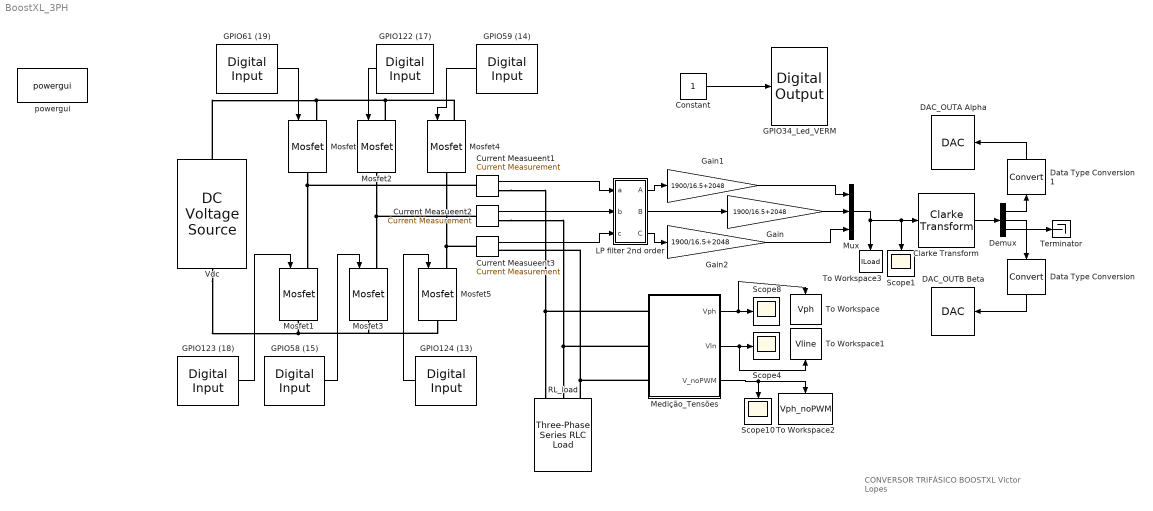
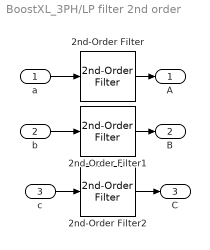
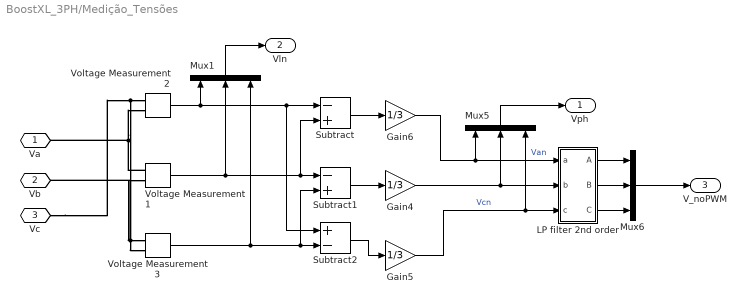
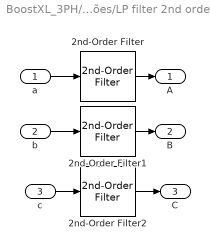
/*
 * File: BoostXL_3PH.c
 *
 * Code generated for Simulink model 'BoostXL_3PH'.
 *
 * Model version                  : 1.14
 * Simulink Coder version         : 8.14 (R2018a) 06-Feb-2018
 * C/C++ source code generated on : Mon Mar 29 09:06:23 2021
 *
 * Target selection: ert.tlc
 * Embedded hardware selection: Texas Instruments->C2000
 * Code generation objectives: Unspecified
 * Validation result: Not run
 */

#include "BoostXL_3PH.h"
#include "BoostXL_3PH_private.h"
#include "BoostXL_3PH_dt.h"

/* Block signals (default storage) */
B_BoostXL_3PH_T BoostXL_3PH_B;

/* Continuous states */
X_BoostXL_3PH_T BoostXL_3PH_X;

/* Block states (default storage) */
DW_BoostXL_3PH_T BoostXL_3PH_DW;

/* Real-time model */
RT_MODEL_BoostXL_3PH_T BoostXL_3PH_M_;
RT_MODEL_BoostXL_3PH_T *const BoostXL_3PH_M = &BoostXL_3PH_M_;
static void rate_monotonic_scheduler(void);

/*
 * Set which subrates need to run this base step (base rate always runs).
 * This function must be called prior to calling the model step function
 * in order to "remember" which rates need to run this base step.  The
 * buffering of events allows for overlapping preemption.
 */
void BoostXL_3PH_SetEventsForThisBaseStep(boolean_T *eventFlags)
{
  /* Task runs when its counter is zero, computed via rtmStepTask macro */
  eventFlags[2] = ((boolean_T)rtmStepTask(BoostXL_3PH_M, 2));
}

/*
 *   This function updates active task flag for each subrate
 * and rate transition flags for tasks that exchange data.
 * The function assumes rate-monotonic multitasking scheduler.
 * The function must be called at model base rate so that
 * the generated code self-manages all its subrates and rate
 * transition flags.
 */
static void rate_monotonic_scheduler(void)
{
  /* Compute which subrates run during the next base time step.  Subrates
   * are an integer multiple of the base rate counter.  Therefore, the subtask
   * counter is reset when it reaches its limit (zero means run).
   */
  (BoostXL_3PH_M->Timing.TaskCounters.TID[2])++;
  if ((BoostXL_3PH_M->Timing.TaskCounters.TID[2]) > 99999) {/* Sample time: [0.5s, 0.0s] */
    BoostXL_3PH_M->Timing.TaskCounters.TID[2] = 0;
  }
}

/* This function updates continuous states using the ODE8 fixed-step
 * solver algorithm
 */
static void rt_ertODEUpdateContinuousStates(RTWSolverInfo *si )
{
  /* Solver Matrices */
#define BoostXL_3PH_NSTAGES            13

  static real_T rt_ODE8_B[13] = {
    4.174749114153025E-2, 0.0, 0.0, 0.0,
    0.0, -5.54523286112393E-2, 2.393128072011801E-1, 7.03510669403443E-1,
    -7.597596138144609E-1, 6.605630309222863E-1, 1.581874825101233E-1,
    -2.381095387528628E-1, 2.5E-1
  };

  static real_T rt_ODE8_C[13] = {
    0.0, 5.555555555555556E-2, 8.333333333333333E-2, 1.25E-1,
    3.125E-1, 3.75E-1, 1.475E-1, 4.65E-1,
    5.648654513822596E-1, 6.5E-1, 9.246562776405044E-1, 1.0, 1.0
  };

  static real_T rt_ODE8_A[13][13] = {
    /* rt_ODE8_A[0][] */
    { 0.0, 0.0, 0.0, 0.0,
      0.0, 0.0, 0.0, 0.0,
      0.0, 0.0, 0.0, 0.0, 0.0 },

    /* rt_ODE8_A[1][] */
    { 5.555555555555556E-2, 0.0, 0.0, 0.0,
      0.0, 0.0, 0.0, 0.0,
      0.0, 0.0, 0.0, 0.0, 0.0 },

    /* rt_ODE8_A[2][] */
    { 2.083333333333333E-2, 6.25E-2, 0.0, 0.0,
      0.0, 0.0, 0.0, 0.0,
      0.0, 0.0, 0.0, 0.0, 0.0 },

    /* rt_ODE8_A[3][] */
    { 3.125E-2, 0.0, 9.375E-2, 0.0,
      0.0, 0.0, 0.0, 0.0,
      0.0, 0.0, 0.0, 0.0, 0.0 },

    /* rt_ODE8_A[4][] */
    { 3.125E-1, 0.0, -1.171875, 1.171875,
      0.0, 0.0, 0.0, 0.0,
      0.0, 0.0, 0.0, 0.0, 0.0 },

    /* rt_ODE8_A[5][] */
    { 3.75E-2, 0.0, 0.0, 1.875E-1,
      1.5E-1, 0.0, 0.0, 0.0,
      0.0, 0.0, 0.0, 0.0, 0.0 },

    /* rt_ODE8_A[6][] */
    { 4.791013711111111E-2, 0.0, 0.0, 1.122487127777778E-1,
      -2.550567377777778E-2, 1.284682388888889E-2, 0.0, 0.0,
      0.0, 0.0, 0.0, 0.0, 0.0 },

    /* rt_ODE8_A[7][] */
    { 1.691798978729228E-2, 0.0, 0.0, 3.878482784860432E-1,
      3.597736985150033E-2, 1.969702142156661E-1, -1.727138523405018E-1, 0.0,
      0.0, 0.0, 0.0, 0.0, 0.0 },

    /* rt_ODE8_A[8][] */
    { 6.90957533591923E-2, 0.0, 0.0, -6.342479767288542E-1,
      -1.611975752246041E-1, 1.386503094588253E-1, 9.409286140357563E-1,
      2.11636326481944E-1,
      0.0, 0.0, 0.0, 0.0, 0.0 },

    /* rt_ODE8_A[9][] */
    { 1.835569968390454E-1, 0.0, 0.0, -2.468768084315592,
      -2.912868878163005E-1, -2.647302023311738E-2, 2.8478387641928,
      2.813873314698498E-1,
      1.237448998633147E-1, 0.0, 0.0, 0.0, 0.0 },

    /* rt_ODE8_A[10][] */
    { -1.215424817395888, 0.0, 0.0, 1.667260866594577E1,
      9.157418284168179E-1, -6.056605804357471, -1.600357359415618E1,
      1.484930308629766E1,
      -1.337157573528985E1, 5.134182648179638, 0.0, 0.0, 0.0 },

    /* rt_ODE8_A[11][] */
    { 2.588609164382643E-1, 0.0, 0.0, -4.774485785489205,
      -4.350930137770325E-1, -3.049483332072241, 5.577920039936099,
      6.155831589861039,
      -5.062104586736938, 2.193926173180679, 1.346279986593349E-1, 0.0, 0.0 },

    /* rt_ODE8_A[12][] */
    { 8.224275996265075E-1, 0.0, 0.0, -1.165867325727766E1,
      -7.576221166909362E-1, 7.139735881595818E-1, 1.207577498689006E1,
      -2.127659113920403,
      1.990166207048956, -2.342864715440405E-1, 1.758985777079423E-1, 0.0, 0.0 },
  };

  time_T t = rtsiGetT(si);
  time_T tnew = rtsiGetSolverStopTime(si);
  time_T h = rtsiGetStepSize(si);
  real_T *x = rtsiGetContStates(si);
  ODE8_IntgData *intgData = (ODE8_IntgData *) rtsiGetSolverData(si);
  real_T *deltaY = intgData->deltaY;
  real_T *x0 = intgData->x0;
  real_T* f[BoostXL_3PH_NSTAGES];
  int idx,stagesIdx,statesIdx;
  double deltaX;
  int_T nXc = 12;
  rtsiSetSimTimeStep(si,MINOR_TIME_STEP);
  f[0] = intgData->f[0];
  f[1] = intgData->f[1];
  f[2] = intgData->f[2];
  f[3] = intgData->f[3];
  f[4] = intgData->f[4];
  f[5] = intgData->f[5];
  f[6] = intgData->f[6];
  f[7] = intgData->f[7];
  f[8] = intgData->f[8];
  f[9] = intgData->f[9];
  f[10] = intgData->f[10];
  f[11] = intgData->f[11];
  f[12] = intgData->f[12];

  /* Save the state values at time t in y and x0*/
  (void) memset(deltaY, 0,
                (uint_T)nXc*sizeof(real_T));
  (void) memcpy(x0, x,
                nXc*sizeof(real_T));
  for (stagesIdx=0;stagesIdx<BoostXL_3PH_NSTAGES;stagesIdx++) {
    (void) memcpy(x, x0,
                  (uint_T)nXc*sizeof(real_T));
    for (statesIdx=0;statesIdx<nXc;statesIdx++) {
      deltaX = 0;
      for (idx=0;idx<stagesIdx;idx++) {
        deltaX = deltaX + h*rt_ODE8_A[stagesIdx][idx]*f[idx][statesIdx];
      }

      x[statesIdx] = x0[statesIdx] + deltaX;
    }

    if (stagesIdx==0) {
      rtsiSetdX(si, f[stagesIdx]);
      BoostXL_3PH_derivatives();
    } else {
      (stagesIdx==BoostXL_3PH_NSTAGES-1)? rtsiSetT(si, tnew) : rtsiSetT(si, t +
        h*rt_ODE8_C[stagesIdx]);
      rtsiSetdX(si, f[stagesIdx]);
      BoostXL_3PH_step0();
      BoostXL_3PH_derivatives();
    }

    for (statesIdx=0;statesIdx<nXc;statesIdx++) {
      deltaY[statesIdx] = deltaY[statesIdx] + h*rt_ODE8_B[stagesIdx]*f[stagesIdx]
        [statesIdx];
    }
  }

  for (statesIdx=0;statesIdx<nXc;statesIdx++) {
    x[statesIdx] = x0[statesIdx] + deltaY[statesIdx];
  }

  rtsiSetSimTimeStep(si,MAJOR_TIME_STEP);
}

real32_T rt_roundf_snf(real32_T u)
{
  real32_T y;
  if (fabsf(u) < 8.388608E+6F) {
    if (u >= 0.5F) {
      y = (real32_T)floor(u + 0.5F);
    } else if (u > -0.5F) {
      y = u * 0.0F;
    } else {
      y = (real32_T)ceil(u - 0.5F);
    }
  } else {
    y = u;
  }

  return y;
}

/* Model step function for TID0 */
void BoostXL_3PH_step0(void)           /* Sample time: [0.0s, 0.0s] */
{
  real32_T tmp;
  uint16_T tmp_0;
  if (rtmIsMajorTimeStep(BoostXL_3PH_M)) {
    /* set solver stop time */
    if (!(BoostXL_3PH_M->Timing.clockTick0+1)) {
      rtsiSetSolverStopTime(&BoostXL_3PH_M->solverInfo,
                            ((BoostXL_3PH_M->Timing.clockTickH0 + 1) *
        BoostXL_3PH_M->Timing.stepSize0 * 4294967296.0));
    } else {
      rtsiSetSolverStopTime(&BoostXL_3PH_M->solverInfo,
                            ((BoostXL_3PH_M->Timing.clockTick0 + 1) *
        BoostXL_3PH_M->Timing.stepSize0 + BoostXL_3PH_M->Timing.clockTickH0 *
        BoostXL_3PH_M->Timing.stepSize0 * 4294967296.0));
    }

    {                                  /* Sample time: [0.0s, 0.0s] */
      rate_monotonic_scheduler();
    }
  }                                    /* end MajorTimeStep */

  /* Update absolute time of base rate at minor time step */
  if (rtmIsMinorTimeStep(BoostXL_3PH_M)) {
    BoostXL_3PH_M->Timing.t[0] = rtsiGetT(&BoostXL_3PH_M->solverInfo);
  }

  if (rtmIsMajorTimeStep(BoostXL_3PH_M)) {
    /* S-Function (sfun_spssw_discc): '<S74>/State-Space' incorporates:
     *  Constant: '<S73>/DC'
     *  Constant: '<S76>/SwitchCurrents'
     */

    /* S-Function block: <S74>/State-Space */
    {
      real_T accum;

      /* Circuit has switches */
      int_T *switch_status = (int_T*)
        BoostXL_3PH_DW.StateSpace_PWORK.SWITCH_STATUS;
      int_T *switch_status_init = (int_T*)
        BoostXL_3PH_DW.StateSpace_PWORK.SWITCH_STATUS_INIT;
      int_T *SwitchChange = (int_T*) BoostXL_3PH_DW.StateSpace_PWORK.SW_CHG;
      int_T *gState = (int_T*) BoostXL_3PH_DW.StateSpace_PWORK.G_STATE;
      real_T *yswitch = (real_T*)BoostXL_3PH_DW.StateSpace_PWORK.Y_SWITCH;
      int_T *switchTypes = (int_T*) BoostXL_3PH_DW.StateSpace_PWORK.SWITCH_TYPES;
      int_T *idxOutSw = (int_T*) BoostXL_3PH_DW.StateSpace_PWORK.IDX_OUT_SW;
      real_T *DxCol = (real_T*)BoostXL_3PH_DW.StateSpace_PWORK.DX_COL;
      real_T *tmp2 = (real_T*)BoostXL_3PH_DW.StateSpace_PWORK.TMP2;
      real_T *BDcol = (real_T*)BoostXL_3PH_DW.StateSpace_PWORK.BD_COL;
      real_T *tmp1 = (real_T*)BoostXL_3PH_DW.StateSpace_PWORK.TMP1;
      real_T *uswlast = (real_T*)BoostXL_3PH_DW.StateSpace_PWORK.USWLAST;
      int_T newState;
      int_T swChanged = 0;
      int loopsToDo = 20;
      real_T temp;

      /* keep an initial copy of switch_status*/
      memcpy(switch_status_init, switch_status, 12 * sizeof(int_T));
      memcpy(uswlast, &BoostXL_3PH_B.StateSpace_o1[0], 12*sizeof(real_T));
      do {
        if (loopsToDo == 1) {          /* Need to reset some variables: */
          swChanged = 0;

          /* return to the original switch status*/
          {
            int_T i1;
            for (i1=0; i1 < 12; i1++) {
              swChanged = ((SwitchChange[i1] = switch_status_init[i1] -
                            switch_status[i1]) != 0) ? 1 : swChanged;
              switch_status[i1] = switch_status_init[i1];
            }
          }
        } else {
          /*
           * Compute outputs:
           * ---------------
           */
          real_T *Cs = (real_T*)BoostXL_3PH_DW.StateSpace_PWORK.CS;
          real_T *Ds = (real_T*)BoostXL_3PH_DW.StateSpace_PWORK.DS;

          {
            int_T i1;
            real_T *y0 = &BoostXL_3PH_B.StateSpace_o1[0];
            for (i1=0; i1 < 18; i1++) {
              accum = 0.0;
              accum += *(Cs++) * BoostXL_3PH_DW.StateSpace_DSTATE[0];
              accum += *(Cs++) * BoostXL_3PH_DW.StateSpace_DSTATE[1];
              accum += *(Cs++) * BoostXL_3PH_DW.StateSpace_DSTATE[2];

              {
                int_T i2;
                const real_T *u0 = &BoostXL_3PH_P.SwitchCurrents_Value[0];
                for (i2=0; i2 < 12; i2++) {
                  accum += *(Ds++) * u0[i2];
                }

                accum += *(Ds++) * BoostXL_3PH_P.Vdc_Amplitude;
              }

              y0[i1] = accum;
            }
          }

          swChanged = 0;

          {
            int_T i1;
            real_T *y0 = &BoostXL_3PH_B.StateSpace_o1[0];
            for (i1=0; i1 < 12; i1++) {
              switch (switchTypes[i1]) {
               case 1 :                /* Ideal switch */
                newState = gState[i1] > 0 ? 1 : 0;
                break;

               case 3 :                /* Diodes */
                newState = y0[i1] > 0.0 ? 1 : ((y0[i1] < 0.0) ? 0 :
                  switch_status[i1]);
                break;
              }

              swChanged = ((SwitchChange[i1] = newState - switch_status[i1]) !=
                           0) ? 1 : swChanged;
              switch_status[i1] = newState;/* Keep new state */
            }
          }
        }

        /*
         * Compute new As, Bs, Cs and Ds matrixes:
         * --------------------------------------
         */
        if (swChanged) {
          real_T *As = (real_T*)BoostXL_3PH_DW.StateSpace_PWORK.AS;
          real_T *Cs = (real_T*)BoostXL_3PH_DW.StateSpace_PWORK.CS;
          real_T *Bs = (real_T*)BoostXL_3PH_DW.StateSpace_PWORK.BS;
          real_T *Ds = (real_T*)BoostXL_3PH_DW.StateSpace_PWORK.DS;
          real_T a1;

          {
            int_T i1;
            for (i1=0; i1 < 12; i1++) {
              if (SwitchChange[i1] != 0) {
                a1 = yswitch[i1]*SwitchChange[i1];
                temp = 1/(1-Ds[i1*14]*a1);

                {
                  int_T i2;
                  for (i2=0; i2 < 18; i2++) {
                    DxCol[i2]= Ds[i2 * 13 + i1]*temp*a1;
                  }
                }

                DxCol[i1] = temp;
                BDcol[0]= Bs[0 + i1]*a1;
                BDcol[1]= Bs[13 + i1]*a1;
                BDcol[2]= Bs[26 + i1]*a1;

                /* Copy row nSw of Cs into tmp1 and zero it out in Cs */
                memcpy(tmp1, &Cs[i1 * 3], 3 * sizeof(real_T));
                memset(&Cs[i1 * 3], '\0', 3 * sizeof(real_T));

                /* Copy row nSw of Ds into tmp2 and zero it out in Ds */
                memcpy(tmp2, &Ds[i1 * 13], 13 * sizeof(real_T));
                memset(&Ds[i1 * 13], '\0', 13 * sizeof(real_T));

                /* Cs = Cs + DxCol * tmp1, Ds = Ds + DxCol * tmp2 *******************/
                {
                  int_T i2;
                  for (i2=0; i2 < 18; i2++) {
                    a1 = DxCol[i2];
                    Cs[i2 * 3 + 0] += a1 * tmp1[0];
                    Cs[i2 * 3 + 1] += a1 * tmp1[1];
                    Cs[i2 * 3 + 2] += a1 * tmp1[2];

                    {
                      int_T i3;
                      for (i3=0; i3 < 13; i3++) {
                        Ds[i2 * 13 + i3] += a1 * tmp2[i3];
                      }
                    }
                  }
                }

                /* As = As + BdCol*Cs(nSw,:), Bs = Bs + BdCol*Ds(nSw,:) *************/
                a1 = BDcol[0];
                As[0 + 0] += a1 * Cs[i1 * 3 + 0];
                As[0 + 1] += a1 * Cs[i1 * 3 + 1];
                As[0 + 2] += a1 * Cs[i1 * 3 + 2];

                {
                  int_T i2;
                  for (i2=0; i2 < 13; i2++) {
                    Bs[0 + i2] += a1 * Ds[i1 * 13 + i2];
                  }
                }

                a1 = BDcol[1];
                As[3 + 0] += a1 * Cs[i1 * 3 + 0];
                As[3 + 1] += a1 * Cs[i1 * 3 + 1];
                As[3 + 2] += a1 * Cs[i1 * 3 + 2];

                {
                  int_T i2;
                  for (i2=0; i2 < 13; i2++) {
                    Bs[13 + i2] += a1 * Ds[i1 * 13 + i2];
                  }
                }

                a1 = BDcol[2];
                As[6 + 0] += a1 * Cs[i1 * 3 + 0];
                As[6 + 1] += a1 * Cs[i1 * 3 + 1];
                As[6 + 2] += a1 * Cs[i1 * 3 + 2];

                {
                  int_T i2;
                  for (i2=0; i2 < 13; i2++) {
                    Bs[26 + i2] += a1 * Ds[i1 * 13 + i2];
                  }
                }
              }
            }
          }
        }                              /* if (swChanged) */
      } while (swChanged > 0 && --loopsToDo > 0);

      if (loopsToDo == 0) {
        real_T *Cs = (real_T*)BoostXL_3PH_DW.StateSpace_PWORK.CS;
        real_T *Ds = (real_T*)BoostXL_3PH_DW.StateSpace_PWORK.DS;

        {
          int_T i1;
          real_T *y0 = &BoostXL_3PH_B.StateSpace_o1[0];
          for (i1=0; i1 < 18; i1++) {
            accum = 0.0;
            accum += *(Cs++) * BoostXL_3PH_DW.StateSpace_DSTATE[0];
            accum += *(Cs++) * BoostXL_3PH_DW.StateSpace_DSTATE[1];
            accum += *(Cs++) * BoostXL_3PH_DW.StateSpace_DSTATE[2];

            {
              int_T i2;
              const real_T *u0 = &BoostXL_3PH_P.SwitchCurrents_Value[0];
              for (i2=0; i2 < 12; i2++) {
                accum += *(Ds++) * u0[i2];
              }

              accum += *(Ds++) * BoostXL_3PH_P.Vdc_Amplitude;
            }

            y0[i1] = accum;
          }
        }
      }

      /* Output new switches states */
      {
        int_T i1;
        real_T *y1 = &BoostXL_3PH_B.StateSpace_o2[0];
        for (i1=0; i1 < 12; i1++) {
          y1[i1] = (real_T)switch_status[i1];
        }
      }
    }

    /* Gain: '<S2>/do not delete this gain' */
    BoostXL_3PH_B.donotdeletethisgain = BoostXL_3PH_P.donotdeletethisgain_Gain *
      BoostXL_3PH_B.StateSpace_o1[15];

    /* Gain: '<S3>/do not delete this gain' */
    BoostXL_3PH_B.donotdeletethisgain_n =
      BoostXL_3PH_P.donotdeletethisgain_Gain_d * BoostXL_3PH_B.StateSpace_o1[16];

    /* Gain: '<S4>/do not delete this gain' */
    BoostXL_3PH_B.donotdeletethisgain_d =
      BoostXL_3PH_P.donotdeletethisgain_Gain_c * BoostXL_3PH_B.StateSpace_o1[17];

    /* S-Function (c280xgpio_di): '<Root>/GPIO122 (17)' */
    {
      BoostXL_3PH_B.GPIO12217 = GpioDataRegs.GPDDAT.bit.GPIO122;
    }

    /* DataTypeConversion: '<S50>/Data Type Conversion' */
    BoostXL_3PH_B.DataTypeConversion = BoostXL_3PH_B.GPIO12217;

    /* S-Function (c280xgpio_di): '<Root>/GPIO123 (18)' */
    {
      BoostXL_3PH_B.GPIO12318 = GpioDataRegs.GPDDAT.bit.GPIO123;
    }

    /* DataTypeConversion: '<S43>/Data Type Conversion' */
    BoostXL_3PH_B.DataTypeConversion_p = BoostXL_3PH_B.GPIO12318;

    /* S-Function (c280xgpio_di): '<Root>/GPIO124 (13)' */
    {
      BoostXL_3PH_B.GPIO12413 = GpioDataRegs.GPDDAT.bit.GPIO124;
    }

    /* DataTypeConversion: '<S71>/Data Type Conversion' */
    BoostXL_3PH_B.DataTypeConversion_pp = BoostXL_3PH_B.GPIO12413;

    /* S-Function (c280xgpio_di): '<Root>/GPIO58 (15)' */
    {
      BoostXL_3PH_B.GPIO5815 = GpioDataRegs.GPBDAT.bit.GPIO58;
    }

    /* DataTypeConversion: '<S57>/Data Type Conversion' */
    BoostXL_3PH_B.DataTypeConversion_b = BoostXL_3PH_B.GPIO5815;

    /* S-Function (c280xgpio_di): '<Root>/GPIO59 (14)' */
    {
      BoostXL_3PH_B.GPIO5914 = GpioDataRegs.GPBDAT.bit.GPIO59;
    }

    /* DataTypeConversion: '<S64>/Data Type Conversion' */
    BoostXL_3PH_B.DataTypeConversion_i = BoostXL_3PH_B.GPIO5914;

    /* S-Function (c280xgpio_di): '<Root>/GPIO61 (19)' */
    {
      BoostXL_3PH_B.GPIO6119 = GpioDataRegs.GPBDAT.bit.GPIO61;
    }

    /* DataTypeConversion: '<S36>/Data Type Conversion' */
    BoostXL_3PH_B.DataTypeConversion_k = BoostXL_3PH_B.GPIO6119;

    /* Gain: '<S23>/do not delete this gain' */
    BoostXL_3PH_B.donotdeletethisgain_c =
      BoostXL_3PH_P.donotdeletethisgain_Gain_a * BoostXL_3PH_B.StateSpace_o1[13];

    /* Gain: '<S22>/do not delete this gain' */
    BoostXL_3PH_B.donotdeletethisgain_g =
      BoostXL_3PH_P.donotdeletethisgain_Gain_h * BoostXL_3PH_B.StateSpace_o1[12];

    /* Gain: '<S24>/do not delete this gain' */
    BoostXL_3PH_B.donotdeletethisgain_p =
      BoostXL_3PH_P.donotdeletethisgain_Gain_df * BoostXL_3PH_B.StateSpace_o1[14];

    /* Gain: '<S6>/Gain4' incorporates:
     *  Sum: '<S6>/Subtract1'
     */
    BoostXL_3PH_B.Gain4 = (BoostXL_3PH_B.donotdeletethisgain_p -
      BoostXL_3PH_B.donotdeletethisgain_g) * BoostXL_3PH_P.Gain4_Gain;

    /* Gain: '<S6>/Gain6' incorporates:
     *  Sum: '<S6>/Subtract'
     */
    BoostXL_3PH_B.Van = (BoostXL_3PH_B.donotdeletethisgain_g -
                         BoostXL_3PH_B.donotdeletethisgain_c) *
      BoostXL_3PH_P.Gain6_Gain;

    /* Gain: '<S6>/Gain5' incorporates:
     *  Sum: '<S6>/Subtract2'
     */
    BoostXL_3PH_B.Vcn = (BoostXL_3PH_B.donotdeletethisgain_c -
                         BoostXL_3PH_B.donotdeletethisgain_p) *
      BoostXL_3PH_P.Gain5_Gain;
  }

  /* Gain: '<Root>/Gain1' incorporates:
   *  StateSpace: '<S18>/State-Space'
   */
  BoostXL_3PH_B.Gain1 = BoostXL_3PH_P.StateSpace_C *
    BoostXL_3PH_X.StateSpace_CSTATE[1] * BoostXL_3PH_P.Gain1_Gain;

  /* Gain: '<Root>/Gain' incorporates:
   *  StateSpace: '<S19>/State-Space'
   */
  BoostXL_3PH_B.Gain = BoostXL_3PH_P.StateSpace_C_o *
    BoostXL_3PH_X.StateSpace_CSTATE_h[1] * BoostXL_3PH_P.Gain_Gain;

  /* Gain: '<Root>/Gain2' incorporates:
   *  StateSpace: '<S20>/State-Space'
   */
  BoostXL_3PH_B.Gain2 = BoostXL_3PH_P.StateSpace_C_b *
    BoostXL_3PH_X.StateSpace_CSTATE_hx[1] * BoostXL_3PH_P.Gain2_Gain;

  /* Start for MATLABSystem: '<Root>/DAC_OUTA Alpha' incorporates:
   *  DataTypeConversion: '<Root>/Data Type Conversion1'
   *  Fcn: '<S1>/alpha'
   *  Gain: '<S1>/K'
   */
  tmp = rt_roundf_snf((real32_T)(((BoostXL_3PH_B.Gain1 - 0.5 *
    BoostXL_3PH_B.Gain) - 0.5 * BoostXL_3PH_B.Gain2) * BoostXL_3PH_P.K_Gain[0]));
  if (tmp < 65536.0F) {
    if (tmp >= 0.0F) {
      tmp_0 = (uint16_T)tmp;
    } else {
      tmp_0 = 0U;
    }
  } else {
    tmp_0 = MAX_uint16_T;
  }

  MW_C2000DACSat(0U, tmp_0);

  /* End of Start for MATLABSystem: '<Root>/DAC_OUTA Alpha' */

  /* Start for MATLABSystem: '<Root>/DAC_OUTB Beta' incorporates:
   *  DataTypeConversion: '<Root>/Data Type Conversion'
   *  Fcn: '<S1>/beta'
   *  Gain: '<S1>/K'
   */
  tmp = rt_roundf_snf((real32_T)((BoostXL_3PH_B.Gain - BoostXL_3PH_B.Gain2) *
    1.7320508075688772 / 2.0 * BoostXL_3PH_P.K_Gain[1]));
  if (tmp < 65536.0F) {
    if (tmp >= 0.0F) {
      tmp_0 = (uint16_T)tmp;
    } else {
      tmp_0 = 0U;
    }
  } else {
    tmp_0 = MAX_uint16_T;
  }

  MW_C2000DACSat(1U, tmp_0);

  /* End of Start for MATLABSystem: '<Root>/DAC_OUTB Beta' */
  if (rtmIsMajorTimeStep(BoostXL_3PH_M)) {
  }

  /* StateSpace: '<S25>/State-Space' */
  BoostXL_3PH_B.StateSpace = 0.0;
  BoostXL_3PH_B.StateSpace += BoostXL_3PH_P.StateSpace_C_j *
    BoostXL_3PH_X.StateSpace_CSTATE_e[1];

  /* StateSpace: '<S26>/State-Space' */
  BoostXL_3PH_B.StateSpace_i = 0.0;
  BoostXL_3PH_B.StateSpace_i += BoostXL_3PH_P.StateSpace_C_p *
    BoostXL_3PH_X.StateSpace_CSTATE_o[1];

  /* StateSpace: '<S27>/State-Space' */
  BoostXL_3PH_B.StateSpace_o = 0.0;
  BoostXL_3PH_B.StateSpace_o += BoostXL_3PH_P.StateSpace_C_p1 *
    BoostXL_3PH_X.StateSpace_CSTATE_j[1];
  if (rtmIsMajorTimeStep(BoostXL_3PH_M)) {
  }

  if (rtmIsMajorTimeStep(BoostXL_3PH_M)) {
    if (rtmIsMajorTimeStep(BoostXL_3PH_M)) {
      /* Update for S-Function (sfun_spssw_discc): '<S74>/State-Space' incorporates:
       *  Constant: '<S73>/DC'
       *  Constant: '<S76>/SwitchCurrents'
       */

      /* S-Function block: <S74>/State-Space */
      {
        const real_T *As = (real_T*)BoostXL_3PH_DW.StateSpace_PWORK.AS;
        const real_T *Bs = (real_T*)BoostXL_3PH_DW.StateSpace_PWORK.BS;
        real_T *xtmp = (real_T*)BoostXL_3PH_DW.StateSpace_PWORK.XTMP;
        real_T accum;

        /* Calculate new states... */
        accum = 0.0;
        accum += *(As++) * BoostXL_3PH_DW.StateSpace_DSTATE[0];
        accum += *(As++) * BoostXL_3PH_DW.StateSpace_DSTATE[1];
        accum += *(As++) * BoostXL_3PH_DW.StateSpace_DSTATE[2];

        {
          int_T i1;
          const real_T *u0 = &BoostXL_3PH_P.SwitchCurrents_Value[0];
          for (i1=0; i1 < 12; i1++) {
            accum += *(Bs++) * u0[i1];
          }

          accum += *(Bs++) * BoostXL_3PH_P.Vdc_Amplitude;
        }

        xtmp[0] = accum;
        accum = 0.0;
        accum += *(As++) * BoostXL_3PH_DW.StateSpace_DSTATE[0];
        accum += *(As++) * BoostXL_3PH_DW.StateSpace_DSTATE[1];
        accum += *(As++) * BoostXL_3PH_DW.StateSpace_DSTATE[2];

        {
          int_T i1;
          const real_T *u0 = &BoostXL_3PH_P.SwitchCurrents_Value[0];
          for (i1=0; i1 < 12; i1++) {
            accum += *(Bs++) * u0[i1];
          }

          accum += *(Bs++) * BoostXL_3PH_P.Vdc_Amplitude;
        }

        xtmp[1] = accum;
        accum = 0.0;
        accum += *(As++) * BoostXL_3PH_DW.StateSpace_DSTATE[0];
        accum += *(As++) * BoostXL_3PH_DW.StateSpace_DSTATE[1];
        accum += *(As++) * BoostXL_3PH_DW.StateSpace_DSTATE[2];

        {
          int_T i1;
          const real_T *u0 = &BoostXL_3PH_P.SwitchCurrents_Value[0];
          for (i1=0; i1 < 12; i1++) {
            accum += *(Bs++) * u0[i1];
          }

          accum += *(Bs++) * BoostXL_3PH_P.Vdc_Amplitude;
        }

        xtmp[2] = accum;
        BoostXL_3PH_DW.StateSpace_DSTATE[0] = xtmp[0];
        BoostXL_3PH_DW.StateSpace_DSTATE[1] = xtmp[1];
        BoostXL_3PH_DW.StateSpace_DSTATE[2] = xtmp[2];

        {
          int_T *gState = (int_T*)BoostXL_3PH_DW.StateSpace_PWORK.G_STATE;

          /* Store switch gates values for next step */
          *(gState++) = (int_T) BoostXL_3PH_B.DataTypeConversion_k;
          *(gState++) = (int_T) BoostXL_3PH_B.DataTypeConversion_p;
          *(gState++) = (int_T) BoostXL_3PH_B.DataTypeConversion;
          *(gState++) = (int_T) BoostXL_3PH_B.DataTypeConversion_b;
          *(gState++) = (int_T) BoostXL_3PH_B.DataTypeConversion_i;
          *(gState++) = (int_T) BoostXL_3PH_B.DataTypeConversion_pp;
          *(gState++) = (int_T) 0.0;
          *(gState++) = (int_T) 0.0;
          *(gState++) = (int_T) 0.0;
          *(gState++) = (int_T) 0.0;
          *(gState++) = (int_T) 0.0;
          *(gState++) = (int_T) 0.0;
        }
      }
    }

    /* External mode */
    rtExtModeUploadCheckTrigger(3);
    rtExtModeUpload(1, BoostXL_3PH_M->Timing.t[0]);
  }                                    /* end MajorTimeStep */

  if (rtmIsMajorTimeStep(BoostXL_3PH_M)) {
    /* signal main to stop simulation */
    {                                  /* Sample time: [0.0s, 0.0s] */
      if ((rtmGetTFinal(BoostXL_3PH_M)!=-1) &&
          !((rtmGetTFinal(BoostXL_3PH_M)-(((BoostXL_3PH_M->Timing.clockTick1+
               BoostXL_3PH_M->Timing.clockTickH1* 4294967296.0)) * 5.0E-6)) >
            (((BoostXL_3PH_M->Timing.clockTick1+
               BoostXL_3PH_M->Timing.clockTickH1* 4294967296.0)) * 5.0E-6) *
            (DBL_EPSILON))) {
        rtmSetErrorStatus(BoostXL_3PH_M, "Simulation finished");
      }

      if (rtmGetStopRequested(BoostXL_3PH_M)) {
        rtmSetErrorStatus(BoostXL_3PH_M, "Simulation finished");
      }
    }

    rt_ertODEUpdateContinuousStates(&BoostXL_3PH_M->solverInfo);

    /* Update absolute time */
    /* The "clockTick0" counts the number of times the code of this task has
     * been executed. The absolute time is the multiplication of "clockTick0"
     * and "Timing.stepSize0". Size of "clockTick0" ensures timer will not
     * overflow during the application lifespan selected.
     * Timer of this task consists of two 32 bit unsigned integers.
     * The two integers represent the low bits Timing.clockTick0 and the high bits
     * Timing.clockTickH0. When the low bit overflows to 0, the high bits increment.
     */
    if (!(++BoostXL_3PH_M->Timing.clockTick0)) {
      ++BoostXL_3PH_M->Timing.clockTickH0;
    }

    BoostXL_3PH_M->Timing.t[0] = rtsiGetSolverStopTime
      (&BoostXL_3PH_M->solverInfo);

    /* Update absolute time */
    /* The "clockTick1" counts the number of times the code of this task has
     * been executed. The resolution of this integer timer is 5.0E-6, which is the step size
     * of the task. Size of "clockTick1" ensures timer will not overflow during the
     * application lifespan selected.
     * Timer of this task consists of two 32 bit unsigned integers.
     * The two integers represent the low bits Timing.clockTick1 and the high bits
     * Timing.clockTickH1. When the low bit overflows to 0, the high bits increment.
     */
    BoostXL_3PH_M->Timing.clockTick1++;
    if (!BoostXL_3PH_M->Timing.clockTick1) {
      BoostXL_3PH_M->Timing.clockTickH1++;
    }
  }                                    /* end MajorTimeStep */
}

/* Derivatives for root system: '<Root>' */
void BoostXL_3PH_derivatives(void)
{
  XDot_BoostXL_3PH_T *_rtXdot;
  _rtXdot = ((XDot_BoostXL_3PH_T *) BoostXL_3PH_M->derivs);

  /* Derivatives for StateSpace: '<S18>/State-Space' */
  _rtXdot->StateSpace_CSTATE[0] = 0.0;

  /* Derivatives for StateSpace: '<S19>/State-Space' */
  _rtXdot->StateSpace_CSTATE_h[0] = 0.0;

  /* Derivatives for StateSpace: '<S20>/State-Space' */
  _rtXdot->StateSpace_CSTATE_hx[0] = 0.0;

  /* Derivatives for StateSpace: '<S25>/State-Space' */
  _rtXdot->StateSpace_CSTATE_e[0] = 0.0;

  /* Derivatives for StateSpace: '<S26>/State-Space' */
  _rtXdot->StateSpace_CSTATE_o[0] = 0.0;

  /* Derivatives for StateSpace: '<S27>/State-Space' */
  _rtXdot->StateSpace_CSTATE_j[0] = 0.0;

  /* Derivatives for StateSpace: '<S18>/State-Space' */
  _rtXdot->StateSpace_CSTATE[1] = 0.0;

  /* Derivatives for StateSpace: '<S19>/State-Space' */
  _rtXdot->StateSpace_CSTATE_h[1] = 0.0;

  /* Derivatives for StateSpace: '<S20>/State-Space' */
  _rtXdot->StateSpace_CSTATE_hx[1] = 0.0;

  /* Derivatives for StateSpace: '<S25>/State-Space' */
  _rtXdot->StateSpace_CSTATE_e[1] = 0.0;

  /* Derivatives for StateSpace: '<S26>/State-Space' */
  _rtXdot->StateSpace_CSTATE_o[1] = 0.0;

  /* Derivatives for StateSpace: '<S27>/State-Space' */
  _rtXdot->StateSpace_CSTATE_j[1] = 0.0;

  /* Derivatives for StateSpace: '<S18>/State-Space' */
  _rtXdot->StateSpace_CSTATE[0] += BoostXL_3PH_P.StateSpace_A[0] *
    BoostXL_3PH_X.StateSpace_CSTATE[0];
  _rtXdot->StateSpace_CSTATE[0] += BoostXL_3PH_P.StateSpace_A[1] *
    BoostXL_3PH_X.StateSpace_CSTATE[1];
  _rtXdot->StateSpace_CSTATE[1] += BoostXL_3PH_P.StateSpace_A[2] *
    BoostXL_3PH_X.StateSpace_CSTATE[0];
  _rtXdot->StateSpace_CSTATE[0] += BoostXL_3PH_P.StateSpace_B *
    BoostXL_3PH_B.donotdeletethisgain;

  /* Derivatives for StateSpace: '<S19>/State-Space' */
  _rtXdot->StateSpace_CSTATE_h[0] += BoostXL_3PH_P.StateSpace_A_p[0] *
    BoostXL_3PH_X.StateSpace_CSTATE_h[0];
  _rtXdot->StateSpace_CSTATE_h[0] += BoostXL_3PH_P.StateSpace_A_p[1] *
    BoostXL_3PH_X.StateSpace_CSTATE_h[1];
  _rtXdot->StateSpace_CSTATE_h[1] += BoostXL_3PH_P.StateSpace_A_p[2] *
    BoostXL_3PH_X.StateSpace_CSTATE_h[0];
  _rtXdot->StateSpace_CSTATE_h[0] += BoostXL_3PH_P.StateSpace_B_f *
    BoostXL_3PH_B.donotdeletethisgain_n;

  /* Derivatives for StateSpace: '<S20>/State-Space' */
  _rtXdot->StateSpace_CSTATE_hx[0] += BoostXL_3PH_P.StateSpace_A_j[0] *
    BoostXL_3PH_X.StateSpace_CSTATE_hx[0];
  _rtXdot->StateSpace_CSTATE_hx[0] += BoostXL_3PH_P.StateSpace_A_j[1] *
    BoostXL_3PH_X.StateSpace_CSTATE_hx[1];
  _rtXdot->StateSpace_CSTATE_hx[1] += BoostXL_3PH_P.StateSpace_A_j[2] *
    BoostXL_3PH_X.StateSpace_CSTATE_hx[0];
  _rtXdot->StateSpace_CSTATE_hx[0] += BoostXL_3PH_P.StateSpace_B_m *
    BoostXL_3PH_B.donotdeletethisgain_d;

  /* Derivatives for StateSpace: '<S25>/State-Space' */
  _rtXdot->StateSpace_CSTATE_e[0] += BoostXL_3PH_P.StateSpace_A_jk[0] *
    BoostXL_3PH_X.StateSpace_CSTATE_e[0];
  _rtXdot->StateSpace_CSTATE_e[0] += BoostXL_3PH_P.StateSpace_A_jk[1] *
    BoostXL_3PH_X.StateSpace_CSTATE_e[1];
  _rtXdot->StateSpace_CSTATE_e[1] += BoostXL_3PH_P.StateSpace_A_jk[2] *
    BoostXL_3PH_X.StateSpace_CSTATE_e[0];
  _rtXdot->StateSpace_CSTATE_e[0] += BoostXL_3PH_P.StateSpace_B_p *
    BoostXL_3PH_B.Van;

  /* Derivatives for StateSpace: '<S26>/State-Space' */
  _rtXdot->StateSpace_CSTATE_o[0] += BoostXL_3PH_P.StateSpace_A_b[0] *
    BoostXL_3PH_X.StateSpace_CSTATE_o[0];
  _rtXdot->StateSpace_CSTATE_o[0] += BoostXL_3PH_P.StateSpace_A_b[1] *
    BoostXL_3PH_X.StateSpace_CSTATE_o[1];
  _rtXdot->StateSpace_CSTATE_o[1] += BoostXL_3PH_P.StateSpace_A_b[2] *
    BoostXL_3PH_X.StateSpace_CSTATE_o[0];
  _rtXdot->StateSpace_CSTATE_o[0] += BoostXL_3PH_P.StateSpace_B_a *
    BoostXL_3PH_B.Gain4;

  /* Derivatives for StateSpace: '<S27>/State-Space' */
  _rtXdot->StateSpace_CSTATE_j[0] += BoostXL_3PH_P.StateSpace_A_f[0] *
    BoostXL_3PH_X.StateSpace_CSTATE_j[0];
  _rtXdot->StateSpace_CSTATE_j[0] += BoostXL_3PH_P.StateSpace_A_f[1] *
    BoostXL_3PH_X.StateSpace_CSTATE_j[1];
  _rtXdot->StateSpace_CSTATE_j[1] += BoostXL_3PH_P.StateSpace_A_f[2] *
    BoostXL_3PH_X.StateSpace_CSTATE_j[0];
  _rtXdot->StateSpace_CSTATE_j[0] += BoostXL_3PH_P.StateSpace_B_e *
    BoostXL_3PH_B.Vcn;
}

/* Model step function for TID2 */
void BoostXL_3PH_step2(void)           /* Sample time: [0.5s, 0.0s] */
{
  /* S-Function (c280xgpio_do): '<Root>/GPIO34_Led_VERM' incorporates:
   *  Constant: '<Root>/Constant'
   */
  {
    GpioDataRegs.GPBTOGGLE.bit.GPIO34 = (BoostXL_3PH_P.Constant_Value != 0);
  }

  rtExtModeUpload(2, ((BoostXL_3PH_M->Timing.clockTick2) * 0.5));

  /* Update absolute time */
  /* The "clockTick2" counts the number of times the code of this task has
   * been executed. The resolution of this integer timer is 0.5, which is the step size
   * of the task. Size of "clockTick2" ensures timer will not overflow during the
   * application lifespan selected.
   */
  BoostXL_3PH_M->Timing.clockTick2++;
}
